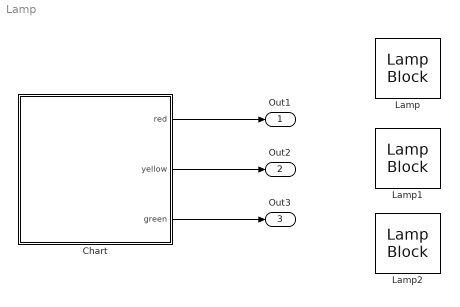
== stateflow chart Lamp/Chart ==
  state Yellow
    en:
    du:
    green = uint8(0);
    red = uint8(0);
    yellow =uint8(1);
    ex:
  state Green
    en:
    du:
    green =uint8(1);
    yellow = uint8(0);
    red = uint8(0);
    ex:
  state Red
    en:
    du:
    red = uint8(1);
    green = uint8(0);
    yellow = uint8(0);
    ex:
  Yellow -> Green : [after(2000,msec)]{green = uint8(0); yellow = uint8(1); red = uint8(0);}
  (default) -> Green
  Green -> Red : [after(5000,msec)]{green = uint8(1); yellow = uint8(0); red = uint8(0); }
  Red -> Yellow : [after(5000,msec)]{green = uint8(0); yellow = uint8(0); red = uint8(1);}
  data: red output uint8; yellow output uint8; green output uint8

/*
 * File: Lamp.c
 *
 * Code generated for Simulink model 'Lamp'.
 *
 * Model version                  : 1.4
 * Simulink Coder version         : 9.0 (R2018b) 24-May-2018
 * C/C++ source code generated on : Mon Mar  7 10:38:28 2022
 *
 * Target selection: ert.tlc
 * Embedded hardware selection: Intel->x86-64 (Windows64)
 * Code generation objectives: Unspecified
 * Validation result: Not run
 */

#include "Lamp.h"
#include "Lamp_private.h"

/* Named constants for Chart: '<Root>/Chart' */
#define Lamp_IN_Green                  ((uint8_T)1U)
#define Lamp_IN_NO_ACTIVE_CHILD        ((uint8_T)0U)
#define Lamp_IN_Red                    ((uint8_T)2U)
#define Lamp_IN_Yellow                 ((uint8_T)3U)

/* Block states (default storage) */
DW_Lamp_T Lamp_DW;

/* External outputs (root outports fed by signals with default storage) */
ExtY_Lamp_T Lamp_Y;

/* Real-time model */
RT_MODEL_Lamp_T Lamp_M_;
RT_MODEL_Lamp_T *const Lamp_M = &Lamp_M_;

/* Model step function */
void Lamp_step(void)
{
  /* Chart: '<Root>/Chart' */
  if (Lamp_DW.temporalCounter_i1 < 15U) {
    Lamp_DW.temporalCounter_i1++;
  }

  if (Lamp_DW.is_active_c3_Lamp == 0U) {
    Lamp_DW.is_active_c3_Lamp = 1U;
    Lamp_DW.is_c3_Lamp = Lamp_IN_Green;
    Lamp_DW.temporalCounter_i1 = 0U;
  } else {
    switch (Lamp_DW.is_c3_Lamp) {
     case Lamp_IN_Green:
      if (Lamp_DW.temporalCounter_i1 >= 9U) {
        /* Outport: '<Root>/Out3' */
        Lamp_Y.Out3 = 1U;

        /* Outport: '<Root>/Out2' */
        Lamp_Y.Out2 = 0U;

        /* Outport: '<Root>/Out1' */
        Lamp_Y.Out1 = 0U;
        Lamp_DW.is_c3_Lamp = Lamp_IN_Red;
        Lamp_DW.temporalCounter_i1 = 0U;
      } else {
        /* Outport: '<Root>/Out3' */
        Lamp_Y.Out3 = 1U;

        /* Outport: '<Root>/Out2' */
        Lamp_Y.Out2 = 0U;

        /* Outport: '<Root>/Out1' */
        Lamp_Y.Out1 = 0U;
      }
      break;

     case Lamp_IN_Red:
      if (Lamp_DW.temporalCounter_i1 >= 9U) {
        /* Outport: '<Root>/Out3' */
        Lamp_Y.Out3 = 0U;

        /* Outport: '<Root>/Out2' */
        Lamp_Y.Out2 = 0U;

        /* Outport: '<Root>/Out1' */
        Lamp_Y.Out1 = 1U;
        Lamp_DW.is_c3_Lamp = Lamp_IN_Yellow;
        Lamp_DW.temporalCounter_i1 = 0U;
      } else {
        /* Outport: '<Root>/Out1' */
        Lamp_Y.Out1 = 1U;

        /* Outport: '<Root>/Out3' */
        Lamp_Y.Out3 = 0U;

        /* Outport: '<Root>/Out2' */
        Lamp_Y.Out2 = 0U;
      }
      break;

     default:
      if (Lamp_DW.temporalCounter_i1 >= 4U) {
        /* Outport: '<Root>/Out3' */
        Lamp_Y.Out3 = 0U;

        /* Outport: '<Root>/Out2' */
        Lamp_Y.Out2 = 1U;

        /* Outport: '<Root>/Out1' */
        Lamp_Y.Out1 = 0U;
        Lamp_DW.is_c3_Lamp = Lamp_IN_Green;
        Lamp_DW.temporalCounter_i1 = 0U;
      } else {
        /* Outport: '<Root>/Out3' */
        Lamp_Y.Out3 = 0U;

        /* Outport: '<Root>/Out1' */
        Lamp_Y.Out1 = 0U;

        /* Outport: '<Root>/Out2' */
        Lamp_Y.Out2 = 1U;
      }
      break;
    }
  }

  /* End of Chart: '<Root>/Chart' */
}
